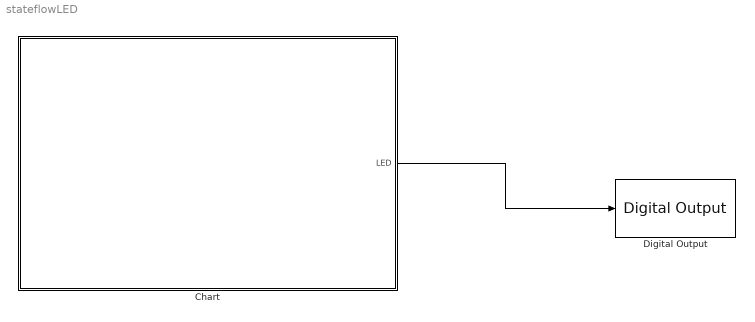
== stateflow chart stateflowLED/Chart ==
  state state01
    LED=0;
  state state02
    LED=1;
  (default) -> state01
  state01 -> state02 : [after(2,sec)]
  state02 -> state01 : [after(2,sec)]
  data: LED output

/*
 * File: stateflowLED.c
 *
 * Code generated for Simulink model 'stateflowLED'.
 *
 * Model version                  : 1.4
 * Simulink Coder version         : 9.3 (R2020a) 18-Nov-2019
 * C/C++ source code generated on : Tue Nov 21 09:10:40 2023
 *
 * Target selection: ert.tlc
 * Embedded hardware selection: Atmel->AVR
 * Code generation objectives: Unspecified
 * Validation result: Not run
 */

#include "stateflowLED.h"
#include "stateflowLED_private.h"
#include "stateflowLED_dt.h"

/* Named constants for Chart: '<Root>/Chart' */
#define stateflowLED_IN_state01        (1UL)
#define stateflowLED_IN_state02        (2UL)

/* Block states (default storage) */
DW_stateflowLED_T stateflowLED_DW;

/* Real-time model */
RT_MODEL_stateflowLED_T stateflowLED_M_;
RT_MODEL_stateflowLED_T *const stateflowLED_M = &stateflowLED_M_;

/* Forward declaration for local functions */
static void matlabCodegenHandle_matlabCodeg(codertarget_arduinobase_block_T *obj);
static void matlabCodegenHandle_matlabCodeg(codertarget_arduinobase_block_T *obj)
{
  if (!obj->matlabCodegenIsDeleted) {
    obj->matlabCodegenIsDeleted = true;
  }
}

/* Model step function */
void stateflowLED_step(void)
{
  int16_T LED;

  /* Chart: '<Root>/Chart' */
  if (stateflowLED_DW.temporalCounter_i1 < 255U) {
    stateflowLED_DW.temporalCounter_i1++;
  }

  if (stateflowLED_DW.is_active_c3_stateflowLED == 0U) {
    stateflowLED_DW.is_active_c3_stateflowLED = 1U;
    stateflowLED_DW.is_c3_stateflowLED = stateflowLED_IN_state01;
    stateflowLED_DW.temporalCounter_i1 = 0U;
    LED = 0;
  } else if (stateflowLED_DW.is_c3_stateflowLED == stateflowLED_IN_state01) {
    if (stateflowLED_DW.temporalCounter_i1 >= 200U) {
      stateflowLED_DW.is_c3_stateflowLED = stateflowLED_IN_state02;
      stateflowLED_DW.temporalCounter_i1 = 0U;
      LED = 1;
    } else {
      LED = 0;
    }
  } else {
    /* case IN_state02: */
    if (stateflowLED_DW.temporalCounter_i1 >= 200U) {
      stateflowLED_DW.is_c3_stateflowLED = stateflowLED_IN_state01;
      stateflowLED_DW.temporalCounter_i1 = 0U;
      LED = 0;
    } else {
      LED = 1;
    }
  }

  /* End of Chart: '<Root>/Chart' */

  /* MATLABSystem: '<Root>/Digital Output' */
  writeDigitalPin(4, (uint8_T)LED);

  /* External mode */
  rtExtModeUploadCheckTrigger(1);

  {                                    /* Sample time: [0.01s, 0.0s] */
    rtExtModeUpload(0, (real_T)stateflowLED_M->Timing.taskTime0);
  }

  /* signal main to stop simulation */
  {                                    /* Sample time: [0.01s, 0.0s] */
    if ((rtmGetTFinal(stateflowLED_M)!=-1) &&
        !((rtmGetTFinal(stateflowLED_M)-stateflowLED_M->Timing.taskTime0) >
          stateflowLED_M->Timing.taskTime0 * (DBL_EPSILON))) {
      rtmSetErrorStatus(stateflowLED_M, "Simulation finished");
    }

    if (rtmGetStopRequested(stateflowLED_M)) {
      rtmSetErrorStatus(stateflowLED_M, "Simulation finished");
    }
  }

  /* Update absolute time for base rate */
  /* The "clockTick0" counts the number of times the code of this task has
   * been executed. The absolute time is the multiplication of "clockTick0"
   * and "Timing.stepSize0". Size of "clockTick0" ensures timer will not
   * overflow during the application lifespan selected.
   */
  stateflowLED_M->Timing.taskTime0 =
    ((time_T)(++stateflowLED_M->Timing.clockTick0)) *
    stateflowLED_M->Timing.stepSize0;
}
